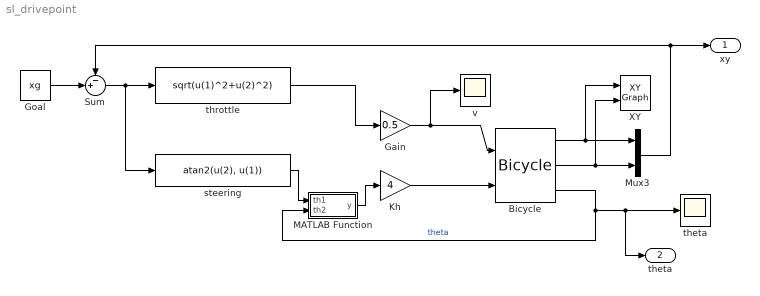
== matlab function MATLAB Function ==
function y = fcn(th1,th2)
%#codegen
if nargin < 2
% THIS IS A BAD IDEA, WHERE IS IT USED?
%         if length(th1) > 1
%             d = th1(1) - th1(2);
%         else
%             d = th1;
%         end
        d = th1;
    else
        d = th1 - th2;
    end

    
    y = mod(d+pi, 2*pi) - pi;

/*
 * sl_drivepoint.c
 *
 * Code generation for model "sl_drivepoint".
 *
 * Model version              : 1.26
 * Simulink Coder version : 8.6 (R2014a) 27-Dec-2013
 * C source code generated on : Fri Mar 09 13:26:13 2018
 *
 * Target selection: grt.tlc
 * Note: GRT includes extra infrastructure and instrumentation for prototyping
 * Embedded hardware selection: Generic->32-bit x86 compatible
 * Code generation objectives: Unspecified
 * Validation result: Not run
 */
#include "rt_logging_mmi.h"
#include "sl_drivepoint_capi.h"
#include "sl_drivepoint.h"
#include "sl_drivepoint_private.h"

/* Block signals (auto storage) */
B_sl_drivepoint_T sl_drivepoint_B;

/* Continuous states */
X_sl_drivepoint_T sl_drivepoint_X;

/* Block states (auto storage) */
DW_sl_drivepoint_T sl_drivepoint_DW;

/* Previous zero-crossings (trigger) states */
PrevZCX_sl_drivepoint_T sl_drivepoint_PrevZCX;

/* External outputs (root outports fed by signals with auto storage) */
ExtY_sl_drivepoint_T sl_drivepoint_Y;

/* Real-time model */
RT_MODEL_sl_drivepoint_T sl_drivepoint_M_;
RT_MODEL_sl_drivepoint_T *const sl_drivepoint_M = &sl_drivepoint_M_;

/*
 * This function updates continuous states using the ODE3 fixed-step
 * solver algorithm
 */
static void rt_ertODEUpdateContinuousStates(RTWSolverInfo *si )
{
  /* Solver Matrices */
  static const real_T rt_ODE3_A[3] = {
    1.0/2.0, 3.0/4.0, 1.0
  };

  static const real_T rt_ODE3_B[3][3] = {
    { 1.0/2.0, 0.0, 0.0 },

    { 0.0, 3.0/4.0, 0.0 },

    { 2.0/9.0, 1.0/3.0, 4.0/9.0 }
  };

  time_T t = rtsiGetT(si);
  time_T tnew = rtsiGetSolverStopTime(si);
  time_T h = rtsiGetStepSize(si);
  real_T *x = rtsiGetContStates(si);
  ODE3_IntgData *id = (ODE3_IntgData *)rtsiGetSolverData(si);
  real_T *y = id->y;
  real_T *f0 = id->f[0];
  real_T *f1 = id->f[1];
  real_T *f2 = id->f[2];
  real_T hB[3];
  int_T i;
  int_T nXc = 3;
  rtsiSetSimTimeStep(si,MINOR_TIME_STEP);

  /* Save the state values at time t in y, we'll use x as ynew. */
  (void) memcpy(y, x,
                (uint_T)nXc*sizeof(real_T));

  /* Assumes that rtsiSetT and ModelOutputs are up-to-date */
  /* f0 = f(t,y) */
  rtsiSetdX(si, f0);
  sl_drivepoint_derivatives();

  /* f(:,2) = feval(odefile, t + hA(1), y + f*hB(:,1), args(:)(*)); */
  hB[0] = h * rt_ODE3_B[0][0];
  for (i = 0; i < nXc; i++) {
    x[i] = y[i] + (f0[i]*hB[0]);
  }

  rtsiSetT(si, t + h*rt_ODE3_A[0]);
  rtsiSetdX(si, f1);
  sl_drivepoint_step();
  sl_drivepoint_derivatives();

  /* f(:,3) = feval(odefile, t + hA(2), y + f*hB(:,2), args(:)(*)); */
  for (i = 0; i <= 1; i++) {
    hB[i] = h * rt_ODE3_B[1][i];
  }

  for (i = 0; i < nXc; i++) {
    x[i] = y[i] + (f0[i]*hB[0] + f1[i]*hB[1]);
  }

  rtsiSetT(si, t + h*rt_ODE3_A[1]);
  rtsiSetdX(si, f2);
  sl_drivepoint_step();
  sl_drivepoint_derivatives();

  /* tnew = t + hA(3);
     ynew = y + f*hB(:,3); */
  for (i = 0; i <= 2; i++) {
    hB[i] = h * rt_ODE3_B[2][i];
  }

  for (i = 0; i < nXc; i++) {
    x[i] = y[i] + (f0[i]*hB[0] + f1[i]*hB[1] + f2[i]*hB[2]);
  }

  rtsiSetT(si, tnew);
  rtsiSetSimTimeStep(si,MAJOR_TIME_STEP);
}

real_T rt_powd_snf(real_T u0, real_T u1)
{
  real_T y;
  real_T tmp;
  real_T tmp_0;
  if (rtIsNaN(u0) || rtIsNaN(u1)) {
    y = (rtNaN);
  } else {
    tmp = fabs(u0);
    tmp_0 = fabs(u1);
    if (rtIsInf(u1)) {
      if (tmp == 1.0) {
        y = (rtNaN);
      } else if (tmp > 1.0) {
        if (u1 > 0.0) {
          y = (rtInf);
        } else {
          y = 0.0;
        }
      } else if (u1 > 0.0) {
        y = 0.0;
      } else {
        y = (rtInf);
      }
    } else if (tmp_0 == 0.0) {
      y = 1.0;
    } else if (tmp_0 == 1.0) {
      if (u1 > 0.0) {
        y = u0;
      } else {
        y = 1.0 / u0;
      }
    } else if (u1 == 2.0) {
      y = u0 * u0;
    } else if ((u1 == 0.5) && (u0 >= 0.0)) {
      y = sqrt(u0);
    } else if ((u0 < 0.0) && (u1 > floor(u1))) {
      y = (rtNaN);
    } else {
      y = pow(u0, u1);
    }
  }

  return y;
}

real_T rt_atan2d_snf(real_T u0, real_T u1)
{
  real_T y;
  int32_T u0_0;
  int32_T u1_0;
  if (rtIsNaN(u0) || rtIsNaN(u1)) {
    y = (rtNaN);
  } else if (rtIsInf(u0) && rtIsInf(u1)) {
    if (u0 > 0.0) {
      u0_0 = 1;
    } else {
      u0_0 = -1;
    }

    if (u1 > 0.0) {
      u1_0 = 1;
    } else {
      u1_0 = -1;
    }

    y = atan2(u0_0, u1_0);
  } else if (u1 == 0.0) {
    if (u0 > 0.0) {
      y = RT_PI / 2.0;
    } else if (u0 < 0.0) {
      y = -(RT_PI / 2.0);
    } else {
      y = 0.0;
    }
  } else {
    y = atan2(u0, u1);
  }

  return y;
}

real_T rt_roundd_snf(real_T u)
{
  real_T y;
  if (fabs(u) < 4.503599627370496E+15) {
    if (u >= 0.5) {
      y = floor(u + 0.5);
    } else if (u > -0.5) {
      y = u * 0.0;
    } else {
      y = ceil(u - 0.5);
    }
  } else {
    y = u;
  }

  return y;
}

/* Model step function */
void sl_drivepoint_step(void)
{
  real_T deltaT;
  real_T riseValLimit;
  real_T rateLimiterRate;
  real_T rtb_Sum_idx_0;
  real_T rtb_Sum_idx_1;
  if (rtmIsMajorTimeStep(sl_drivepoint_M)) {
    /* set solver stop time */
    if (!(sl_drivepoint_M->Timing.clockTick0+1)) {
      rtsiSetSolverStopTime(&sl_drivepoint_M->solverInfo,
                            ((sl_drivepoint_M->Timing.clockTickH0 + 1) *
        sl_drivepoint_M->Timing.stepSize0 * 4294967296.0));
    } else {
      rtsiSetSolverStopTime(&sl_drivepoint_M->solverInfo,
                            ((sl_drivepoint_M->Timing.clockTick0 + 1) *
        sl_drivepoint_M->Timing.stepSize0 + sl_drivepoint_M->Timing.clockTickH0 *
        sl_drivepoint_M->Timing.stepSize0 * 4294967296.0));
    }
  }                                    /* end MajorTimeStep */

  /* Update absolute time of base rate at minor time step */
  if (rtmIsMinorTimeStep(sl_drivepoint_M)) {
    sl_drivepoint_M->Timing.t[0] = rtsiGetT(&sl_drivepoint_M->solverInfo);
  }

  /* Integrator: '<S1>/Integrator' */
  if (rtmIsMajorTimeStep(sl_drivepoint_M)) {
    ZCEventType zcEvent;
    zcEvent = rt_ZCFcn(ANY_ZERO_CROSSING,
                       &sl_drivepoint_PrevZCX.Integrator_Reset_ZCE,
                       sl_drivepoint_P.Bicycle_handbrake);

    /* evaluate zero-crossings and the level of the reset signal */
    if (zcEvent || sl_drivepoint_P.Bicycle_handbrake != 0.0) {
      sl_drivepoint_X.Integrator_CSTATE[0] = sl_drivepoint_P.x0[0];
      sl_drivepoint_X.Integrator_CSTATE[1] = sl_drivepoint_P.x0[1];
      sl_drivepoint_X.Integrator_CSTATE[2] = sl_drivepoint_P.x0[2];
    }
  }

  sl_drivepoint_B.Integrator[0] = sl_drivepoint_X.Integrator_CSTATE[0];
  sl_drivepoint_B.Integrator[1] = sl_drivepoint_X.Integrator_CSTATE[1];
  sl_drivepoint_B.Integrator[2] = sl_drivepoint_X.Integrator_CSTATE[2];

  /* Outport: '<Root>/xy' */
  sl_drivepoint_Y.xy[0] = sl_drivepoint_B.Integrator[0];
  sl_drivepoint_Y.xy[1] = sl_drivepoint_B.Integrator[1];

  /* Outport: '<Root>/theta ' */
  sl_drivepoint_Y.theta = sl_drivepoint_B.Integrator[2];
  if (rtmIsMajorTimeStep(sl_drivepoint_M)) {
  }

  /* Sum: '<Root>/Sum' incorporates:
   *  Constant: '<Root>/Goal'
   */
  rtb_Sum_idx_0 = sl_drivepoint_P.xg[0] - sl_drivepoint_B.Integrator[0];
  rtb_Sum_idx_1 = sl_drivepoint_P.xg[1] - sl_drivepoint_B.Integrator[1];

  /* Fcn: '<Root>/throttle' */
  deltaT = rt_powd_snf(rtb_Sum_idx_0, 2.0) + rt_powd_snf(rtb_Sum_idx_1, 2.0);
  if (deltaT < 0.0) {
    deltaT = -sqrt(-deltaT);
  } else {
    deltaT = sqrt(deltaT);
  }

  /* End of Fcn: '<Root>/throttle' */

  /* Gain: '<Root>/Gain' */
  sl_drivepoint_B.Gain = sl_drivepoint_P.Gain_Gain * deltaT;
  if (rtmIsMajorTimeStep(sl_drivepoint_M)) {
  }

  /* MATLAB Function: '<Root>/MATLAB Function' incorporates:
   *  Fcn: '<Root>/steering'
   */
  /* MATLAB Function 'MATLAB Function': '<S2>:1' */
  /* '<S2>:1:12' */
  /* '<S2>:1:16' */
  rtb_Sum_idx_0 = ((rt_atan2d_snf(rtb_Sum_idx_1, rtb_Sum_idx_0) -
                    sl_drivepoint_B.Integrator[2]) + 3.1415926535897931) /
    6.2831853071795862;
  if (fabs(rtb_Sum_idx_0 - rt_roundd_snf(rtb_Sum_idx_0)) <=
      2.2204460492503131E-16 * fabs(rtb_Sum_idx_0)) {
    rtb_Sum_idx_0 = 0.0;
  } else {
    rtb_Sum_idx_0 = (rtb_Sum_idx_0 - floor(rtb_Sum_idx_0)) * 6.2831853071795862;
  }

  /* Saturate: '<S1>/vel limit' */
  if (sl_drivepoint_B.Gain > sl_drivepoint_P.Bicycle_vlim) {
    rtb_Sum_idx_1 = sl_drivepoint_P.Bicycle_vlim;
  } else if (sl_drivepoint_B.Gain < -sl_drivepoint_P.Bicycle_vlim) {
    rtb_Sum_idx_1 = -sl_drivepoint_P.Bicycle_vlim;
  } else {
    rtb_Sum_idx_1 = sl_drivepoint_B.Gain;
  }

  /* End of Saturate: '<S1>/vel limit' */

  /* RateLimiter: '<S1>/acceleration limit' */
  if (sl_drivepoint_DW.LastMajorTime == (rtInf)) {
    sl_drivepoint_B.accelerationlimit = rtb_Sum_idx_1;
  } else {
    deltaT = sl_drivepoint_M->Timing.t[0] - sl_drivepoint_DW.LastMajorTime;
    riseValLimit = deltaT * sl_drivepoint_P.Bicycle_accel;
    rateLimiterRate = rtb_Sum_idx_1 - sl_drivepoint_DW.PrevY;
    if (rateLimiterRate > riseValLimit) {
      sl_drivepoint_B.accelerationlimit = sl_drivepoint_DW.PrevY + riseValLimit;
    } else {
      deltaT *= -sl_drivepoint_P.Bicycle_accel;
      if (rateLimiterRate < deltaT) {
        sl_drivepoint_B.accelerationlimit = sl_drivepoint_DW.PrevY + deltaT;
      } else {
        sl_drivepoint_B.accelerationlimit = rtb_Sum_idx_1;
      }
    }
  }

  /* End of RateLimiter: '<S1>/acceleration limit' */

  /* Product: '<S1>/Product' incorporates:
   *  Trigonometry: '<S1>/Trigonometric Function'
   *  Trigonometry: '<S1>/Trigonometric Function2'
   */
  sl_drivepoint_B.Product[0] = cos(sl_drivepoint_B.Integrator[2]) *
    sl_drivepoint_B.accelerationlimit;
  sl_drivepoint_B.Product[1] = sin(sl_drivepoint_B.Integrator[2]) *
    sl_drivepoint_B.accelerationlimit;

  /* Gain: '<Root>/Kh' incorporates:
   *  MATLAB Function: '<Root>/MATLAB Function'
   */
  rtb_Sum_idx_0 = (rtb_Sum_idx_0 - 3.1415926535897931) * sl_drivepoint_P.Kh_Gain;

  /* Saturate: '<S1>/steering angle limit' */
  if (rtb_Sum_idx_0 > sl_drivepoint_P.Bicycle_alim) {
    rtb_Sum_idx_0 = sl_drivepoint_P.Bicycle_alim;
  } else {
    if (rtb_Sum_idx_0 < -sl_drivepoint_P.Bicycle_alim) {
      rtb_Sum_idx_0 = -sl_drivepoint_P.Bicycle_alim;
    }
  }

  /* Product: '<S1>/Product' incorporates:
   *  Fcn: '<S1>/Fcn'
   *  Saturate: '<S1>/steering angle limit'
   */
  sl_drivepoint_B.Product[2] = tan(rtb_Sum_idx_0) *
    sl_drivepoint_B.accelerationlimit;
  if (rtmIsMajorTimeStep(sl_drivepoint_M)) {
    /* Matfile logging */
    rt_UpdateTXYLogVars(sl_drivepoint_M->rtwLogInfo, (sl_drivepoint_M->Timing.t));
  }                                    /* end MajorTimeStep */

  if (rtmIsMajorTimeStep(sl_drivepoint_M)) {
    /* Update for RateLimiter: '<S1>/acceleration limit' */
    sl_drivepoint_DW.PrevY = sl_drivepoint_B.accelerationlimit;
    sl_drivepoint_DW.LastMajorTime = sl_drivepoint_M->Timing.t[0];
  }                                    /* end MajorTimeStep */

  if (rtmIsMajorTimeStep(sl_drivepoint_M)) {
    /* signal main to stop simulation */
    {                                  /* Sample time: [0.0s, 0.0s] */
      if ((rtmGetTFinal(sl_drivepoint_M)!=-1) &&
          !((rtmGetTFinal(sl_drivepoint_M)-(((sl_drivepoint_M->Timing.clockTick1
               +sl_drivepoint_M->Timing.clockTickH1* 4294967296.0)) * 0.3)) >
            (((sl_drivepoint_M->Timing.clockTick1+
               sl_drivepoint_M->Timing.clockTickH1* 4294967296.0)) * 0.3) *
            (DBL_EPSILON))) {
        rtmSetErrorStatus(sl_drivepoint_M, "Simulation finished");
      }
    }

    rt_ertODEUpdateContinuousStates(&sl_drivepoint_M->solverInfo);

    /* Update absolute time for base rate */
    /* The "clockTick0" counts the number of times the code of this task has
     * been executed. The absolute time is the multiplication of "clockTick0"
     * and "Timing.stepSize0". Size of "clockTick0" ensures timer will not
     * overflow during the application lifespan selected.
     * Timer of this task consists of two 32 bit unsigned integers.
     * The two integers represent the low bits Timing.clockTick0 and the high bits
     * Timing.clockTickH0. When the low bit overflows to 0, the high bits increment.
     */
    if (!(++sl_drivepoint_M->Timing.clockTick0)) {
      ++sl_drivepoint_M->Timing.clockTickH0;
    }

    sl_drivepoint_M->Timing.t[0] = rtsiGetSolverStopTime
      (&sl_drivepoint_M->solverInfo);

    {
      /* Update absolute timer for sample time: [0.3s, 0.0s] */
      /* The "clockTick1" counts the number of times the code of this task has
       * been executed. The resolution of this integer timer is 0.3, which is the step size
       * of the task. Size of "clockTick1" ensures timer will not overflow during the
       * application lifespan selected.
       * Timer of this task consists of two 32 bit unsigned integers.
       * The two integers represent the low bits Timing.clockTick1 and the high bits
       * Timing.clockTickH1. When the low bit overflows to 0, the high bits increment.
       */
      sl_drivepoint_M->Timing.clockTick1++;
      if (!sl_drivepoint_M->Timing.clockTick1) {
        sl_drivepoint_M->Timing.clockTickH1++;
      }
    }
  }                                    /* end MajorTimeStep */
}
